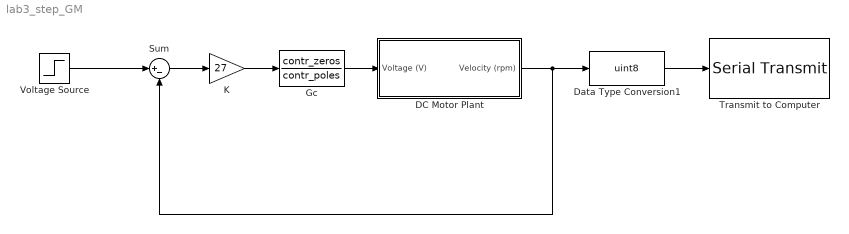
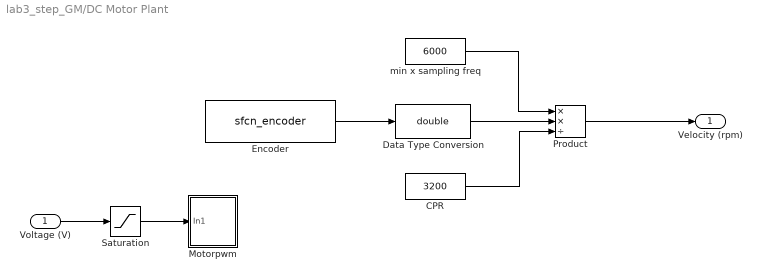
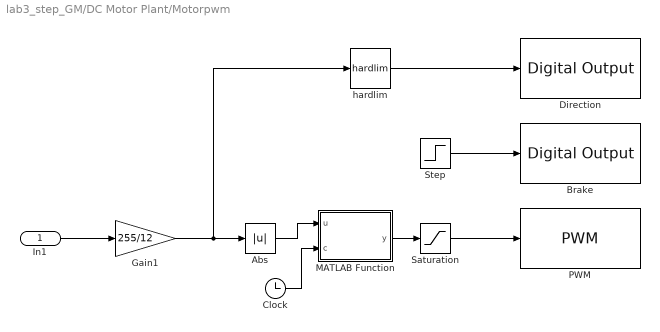
== matlab function lab3_step_GM/DC Motor Plant/Motorpwm/MATLAB Function ==
function y = fcn(u,c)
%#codegen
if c<10
    y = u;
else
    y=0;
end

/*
 * Academic License - for use in teaching, academic research, and meeting
 * course requirements at degree granting institutions only.  Not for
 * government, commercial, or other organizational use.
 *
 * File: lab3_step_GM.c
 *
 * Code generated for Simulink model 'lab3_step_GM'.
 *
 * Model version                  : 1.43
 * Simulink Coder version         : 8.11 (R2016b) 25-Aug-2016
 * C/C++ source code generated on : Sat Apr 27 10:25:58 2019
 *
 * Target selection: ert.tlc
 * Embedded hardware selection: Atmel->AVR
 * Code generation objectives: Unspecified
 * Validation result: Not run
 */

#include "lab3_step_GM.h"
#include "lab3_step_GM_private.h"
#define lab3_step_GM_PinNumber         (8.0)
#define lab3_step_GM_PinNumber_m       (13.0)

/* Block signals (auto storage) */
BlockIO_lab3_step_GM lab3_step_GM_B;

/* Continuous states */
ContinuousStates_lab3_step_GM lab3_step_GM_X;

/* Block states (auto storage) */
D_Work_lab3_step_GM lab3_step_GM_DWork;

/* Real-time model */
RT_MODEL_lab3_step_GM lab3_step_GM_M_;
RT_MODEL_lab3_step_GM *const lab3_step_GM_M = &lab3_step_GM_M_;

/*
 * This function updates continuous states using the ODE3 fixed-step
 * solver algorithm
 */
static void rt_ertODEUpdateContinuousStates(RTWSolverInfo *si )
{
  /* Solver Matrices */
  static const real_T rt_ODE3_A[3] = {
    1.0/2.0, 3.0/4.0, 1.0
  };

  static const real_T rt_ODE3_B[3][3] = {
    { 1.0/2.0, 0.0, 0.0 },

    { 0.0, 3.0/4.0, 0.0 },

    { 2.0/9.0, 1.0/3.0, 4.0/9.0 }
  };

  time_T t = rtsiGetT(si);
  time_T tnew = rtsiGetSolverStopTime(si);
  time_T h = rtsiGetStepSize(si);
  real_T *x = rtsiGetContStates(si);
  ODE3_IntgData *id = (ODE3_IntgData *)rtsiGetSolverData(si);
  real_T *y = id->y;
  real_T *f0 = id->f[0];
  real_T *f1 = id->f[1];
  real_T *f2 = id->f[2];
  real_T hB[3];
  int_T i;
  int_T nXc = 1;
  rtsiSetSimTimeStep(si,MINOR_TIME_STEP);

  /* Save the state values at time t in y, we'll use x as ynew. */
  (void) memcpy(y, x,
                (uint_T)nXc*sizeof(real_T));

  /* Assumes that rtsiSetT and ModelOutputs are up-to-date */
  /* f0 = f(t,y) */
  rtsiSetdX(si, f0);
  lab3_step_GM_derivatives();

  /* f(:,2) = feval(odefile, t + hA(1), y + f*hB(:,1), args(:)(*)); */
  hB[0] = h * rt_ODE3_B[0][0];
  for (i = 0; i < nXc; i++) {
    x[i] = y[i] + (f0[i]*hB[0]);
  }

  rtsiSetT(si, t + h*rt_ODE3_A[0]);
  rtsiSetdX(si, f1);
  lab3_step_GM_step();
  lab3_step_GM_derivatives();

  /* f(:,3) = feval(odefile, t + hA(2), y + f*hB(:,2), args(:)(*)); */
  for (i = 0; i <= 1; i++) {
    hB[i] = h * rt_ODE3_B[1][i];
  }

  for (i = 0; i < nXc; i++) {
    x[i] = y[i] + (f0[i]*hB[0] + f1[i]*hB[1]);
  }

  rtsiSetT(si, t + h*rt_ODE3_A[1]);
  rtsiSetdX(si, f2);
  lab3_step_GM_step();
  lab3_step_GM_derivatives();

  /* tnew = t + hA(3);
     ynew = y + f*hB(:,3); */
  for (i = 0; i <= 2; i++) {
    hB[i] = h * rt_ODE3_B[2][i];
  }

  for (i = 0; i < nXc; i++) {
    x[i] = y[i] + (f0[i]*hB[0] + f1[i]*hB[1] + f2[i]*hB[2]);
  }

  rtsiSetT(si, tnew);
  rtsiSetSimTimeStep(si,MAJOR_TIME_STEP);
}

real_T rt_roundd_snf(real_T u)
{
  real_T y;
  if (fabs(u) < 4.503599627370496E+15) {
    if (u >= 0.5) {
      y = floor(u + 0.5);
    } else if (u > -0.5) {
      y = u * 0.0;
    } else {
      y = ceil(u - 0.5);
    }
  } else {
    y = u;
  }

  return y;
}

/* Model step function */
void lab3_step_GM_step(void)
{
  real_T currentTime;
  int16_T k;
  uint8_T dataIn;
  real_T rtb_Product;
  boolean_T exitg1;
  if (rtmIsMajorTimeStep(lab3_step_GM_M)) {
    /* set solver stop time */
    rtsiSetSolverStopTime(&lab3_step_GM_M->solverInfo,
                          ((lab3_step_GM_M->Timing.clockTick0+1)*
      lab3_step_GM_M->Timing.stepSize0));
  }                                    /* end MajorTimeStep */

  /* Update absolute time of base rate at minor time step */
  if (rtmIsMinorTimeStep(lab3_step_GM_M)) {
    lab3_step_GM_M->Timing.t[0] = rtsiGetT(&lab3_step_GM_M->solverInfo);
  }

  if (rtmIsMajorTimeStep(lab3_step_GM_M)) {
    /* S-Function (sfcn_encoder): '<S1>/Encoder' */
    sfcn_encoder_Outputs_wrapper( &lab3_step_GM_B.Encoder,
      &lab3_step_GM_DWork.Encoder_DSTATE, &lab3_step_GM_P.Encoder_P1, 1,
      &lab3_step_GM_P.Encoder_P2, 1, &lab3_step_GM_P.Encoder_P3, 1);

    /* Product: '<S1>/Product' incorporates:
     *  Constant: '<S1>/CPR'
     *  Constant: '<S1>/min x sampling freq'
     *  DataTypeConversion: '<S1>/Data Type Conversion'
     */
    rtb_Product = lab3_step_GM_P.minxsamplingfreq_Value * (real_T)
      lab3_step_GM_B.Encoder / lab3_step_GM_P.CPR_Value;

    /* Start for MATLABSystem: '<Root>/Transmit to Computer' incorporates:
     *  MATLABSystem: '<Root>/Transmit to Computer'
     */
    k = 0;
    exitg1 = false;
    while ((!exitg1) && (k < 8)) {
      if (lab3_step_GM_DWork.obj.inputVarSize.f1[k] != 1UL) {
        for (k = 0; k < 8; k++) {
          lab3_step_GM_DWork.obj.inputVarSize.f1[k] = 1UL;
        }

        exitg1 = true;
      } else {
        k++;
      }
    }

    /* DataTypeConversion: '<Root>/Data Type Conversion1' */
    currentTime = rt_roundd_snf(rtb_Product);
    if (rtIsNaN(currentTime) || rtIsInf(currentTime)) {
      currentTime = 0.0;
    } else {
      currentTime = fmod(currentTime, 256.0);
    }

    /* Start for MATLABSystem: '<Root>/Transmit to Computer' incorporates:
     *  DataTypeConversion: '<Root>/Data Type Conversion1'
     *  MATLABSystem: '<Root>/Transmit to Computer'
     */
    dataIn = (uint8_T)(currentTime < 0.0 ? (int16_T)(uint8_T)-(int8_T)(uint8_T)
                       -currentTime : (int16_T)(uint8_T)currentTime);
    MW_Serial_write(lab3_step_GM_DWork.obj.port, &dataIn, 1.0,
                    lab3_step_GM_DWork.obj.dataSizeInBytes);

    /* Step: '<Root>/Voltage Source' */
    currentTime = ((lab3_step_GM_M->Timing.clockTick1) * 0.01);
    if (currentTime < lab3_step_GM_P.VoltageSource_Time) {
      currentTime = lab3_step_GM_P.VoltageSource_Y0;
    } else {
      currentTime = lab3_step_GM_P.VoltageSource_YFinal;
    }

    /* End of Step: '<Root>/Voltage Source' */

    /* Gain: '<Root>/K' incorporates:
     *  Sum: '<Root>/Sum'
     */
    lab3_step_GM_B.K = (currentTime - rtb_Product) * lab3_step_GM_P.K_Gain;
  }

  /* TransferFcn: '<Root>/Gc' */
  currentTime = lab3_step_GM_P.contr_zeros[0] / lab3_step_GM_P.contr_poles[0] *
    (lab3_step_GM_P.contr_poles[1] / lab3_step_GM_P.contr_poles[0]);
  rtb_Product = (lab3_step_GM_P.contr_zeros[1] / lab3_step_GM_P.contr_poles[0] -
                 currentTime) * lab3_step_GM_X.Gc_CSTATE +
    lab3_step_GM_P.contr_zeros[0] / lab3_step_GM_P.contr_poles[0] *
    lab3_step_GM_B.K;

  /* Saturate: '<S1>/Saturation' */
  if (rtb_Product > lab3_step_GM_P.Saturation_UpperSat) {
    rtb_Product = lab3_step_GM_P.Saturation_UpperSat;
  } else {
    if (rtb_Product < lab3_step_GM_P.Saturation_LowerSat) {
      rtb_Product = lab3_step_GM_P.Saturation_LowerSat;
    }
  }

  /* End of Saturate: '<S1>/Saturation' */

  /* Gain: '<S2>/Gain1' */
  rtb_Product *= lab3_step_GM_P.Gain1_Gain;

  /* Switch: '<S7>/Switch' incorporates:
   *  Constant: '<S7>/Constant'
   *  Constant: '<S7>/Constant1'
   */
  if (rtb_Product >= lab3_step_GM_P.Switch_Threshold) {
    currentTime = lab3_step_GM_P.Constant_Value;
  } else {
    currentTime = lab3_step_GM_P.Constant1_Value;
  }

  /* End of Switch: '<S7>/Switch' */

  /* DataTypeConversion: '<S4>/Data Type Conversion' */
  if (currentTime < 256.0) {
    if (currentTime >= 0.0) {
      dataIn = (uint8_T)currentTime;
    } else {
      dataIn = 0U;
    }
  } else {
    dataIn = MAX_uint8_T;
  }

  /* End of DataTypeConversion: '<S4>/Data Type Conversion' */

  /* Start for MATLABSystem: '<S4>/Digital Output' incorporates:
   *  MATLABSystem: '<S4>/Digital Output'
   */
  writeDigitalPin((uint8_T)lab3_step_GM_PinNumber_m, dataIn);

  /* MATLAB Function: '<S2>/MATLAB Function' incorporates:
   *  Abs: '<S2>/Abs'
   *  Clock: '<S2>/Clock'
   */
  /* MATLAB Function 'DC Motor Plant/Motorpwm/MATLAB Function': '<S5>:1' */
  /* '<S5>:1:3' if c<10 */
  if (lab3_step_GM_M->Timing.t[0] < 10.0) {
    /* '<S5>:1:4' y = u; */
    rtb_Product = fabs(rtb_Product);
  } else {
    /* '<S5>:1:5' else */
    /* '<S5>:1:6' y=0; */
    rtb_Product = 0.0;
  }

  /* End of MATLAB Function: '<S2>/MATLAB Function' */
  if (rtmIsMajorTimeStep(lab3_step_GM_M)) {
    /* Saturate: '<S2>/Saturation' */
    if (rtb_Product > lab3_step_GM_P.Saturation_UpperSat_l) {
      /* DataTypeConversion: '<S6>/Data Type Conversion' */
      rtb_Product = lab3_step_GM_P.Saturation_UpperSat_l;
    } else {
      if (rtb_Product < lab3_step_GM_P.Saturation_LowerSat_g) {
        /* DataTypeConversion: '<S6>/Data Type Conversion' */
        rtb_Product = lab3_step_GM_P.Saturation_LowerSat_g;
      }
    }

    /* End of Saturate: '<S2>/Saturation' */

    /* DataTypeConversion: '<S6>/Data Type Conversion' */
    if (rtb_Product < 256.0) {
      if (rtb_Product >= 0.0) {
        dataIn = (uint8_T)rtb_Product;
      } else {
        dataIn = 0U;
      }
    } else {
      dataIn = MAX_uint8_T;
    }

    /* S-Function (arduinoanalogoutput_sfcn): '<S6>/PWM' */
    MW_analogWrite(lab3_step_GM_P.PWM_pinNumber, dataIn);
  }

  /* Step: '<S2>/Step' */
  currentTime = lab3_step_GM_M->Timing.t[0];
  if (currentTime < lab3_step_GM_P.Step_Time) {
    currentTime = lab3_step_GM_P.Step_Y0;
  } else {
    currentTime = lab3_step_GM_P.Step_YFinal;
  }

  /* End of Step: '<S2>/Step' */

  /* DataTypeConversion: '<S3>/Data Type Conversion' */
  if (currentTime < 256.0) {
    if (currentTime >= 0.0) {
      dataIn = (uint8_T)currentTime;
    } else {
      dataIn = 0U;
    }
  } else {
    dataIn = MAX_uint8_T;
  }

  /* End of DataTypeConversion: '<S3>/Data Type Conversion' */

  /* Start for MATLABSystem: '<S3>/Digital Output' incorporates:
   *  MATLABSystem: '<S3>/Digital Output'
   */
  writeDigitalPin((uint8_T)lab3_step_GM_PinNumber, dataIn);
  if (rtmIsMajorTimeStep(lab3_step_GM_M)) {
    if (rtmIsMajorTimeStep(lab3_step_GM_M)) {
      /* S-Function "sfcn_encoder_wrapper" Block: <S1>/Encoder */
      sfcn_encoder_Update_wrapper( &lab3_step_GM_B.Encoder,
        &lab3_step_GM_DWork.Encoder_DSTATE, &lab3_step_GM_P.Encoder_P1, 1,
        &lab3_step_GM_P.Encoder_P2, 1, &lab3_step_GM_P.Encoder_P3, 1);
    }
  }                                    /* end MajorTimeStep */

  if (rtmIsMajorTimeStep(lab3_step_GM_M)) {
    rt_ertODEUpdateContinuousStates(&lab3_step_GM_M->solverInfo);

    /* Update absolute time for base rate */
    /* The "clockTick0" counts the number of times the code of this task has
     * been executed. The absolute time is the multiplication of "clockTick0"
     * and "Timing.stepSize0". Size of "clockTick0" ensures timer will not
     * overflow during the application lifespan selected.
     */
    ++lab3_step_GM_M->Timing.clockTick0;
    lab3_step_GM_M->Timing.t[0] = rtsiGetSolverStopTime
      (&lab3_step_GM_M->solverInfo);

    {
      /* Update absolute timer for sample time: [0.01s, 0.0s] */
      /* The "clockTick1" counts the number of times the code of this task has
       * been executed. The resolution of this integer timer is 0.01, which is the step size
       * of the task. Size of "clockTick1" ensures timer will not overflow during the
       * application lifespan selected.
       */
      lab3_step_GM_M->Timing.clockTick1++;
    }
  }                                    /* end MajorTimeStep */
}
